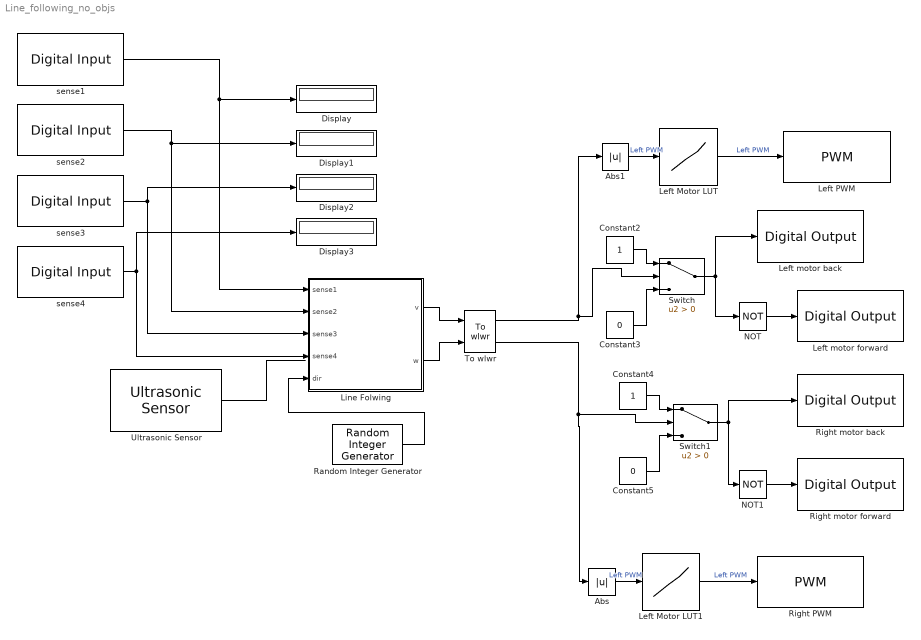
== stateflow chart Line_following_no_objs/Line Folwing ==
  state Random
    entry:
    dir;
  state notEnd
    entry:
    v=-0.12;
  state End
    entry:
    v=0;
    w=0;
    i=1;
  state TurnAround
    entry:
    v=0;
    w=3;
  state checkEnd
    entry:
    v=0.12;
  state TurnLeft
    entry:
    v=0.12;
    w=3;
  state TurnRight
    entry:
    v=0.12;
    w=-3;
  state Drive
    entry:
    v=0.13;
    w=0;
    i;
    n;
    data1;
  state Wait1
    entry:
    w=0;
    v=0;
  state CorrectRight
    entry:
    w=-5;
    v=0.1;
  state CorrectLeft
    entry:
    w=5;
  state Wait
    entry:
    w=0;
    v=0;
  state wait
    entry:
    v=0;
  state wait1
    entry:
    v=0;
  checkEnd -> TurnAround [order 3] : [after(0.5,sec) &&sense1 ==0 && sense2 == 0 && sense3 ==0 && sense4==0 && i==1]
  Random -> TurnLeft [order 2] : [dir==1]
  Random -> TurnRight [order 1] : [dir==0]
  notEnd -> Random : [after(0.5,sec)]
  checkEnd -> notEnd [order 1] : [after(0.5,sec) &&sense1 == 1 && sense2 == 1 && sense3 ==1 && sense4==1 ]
  End -> TurnAround : [after(3,sec)]
  checkEnd -> End [order 2] : [after(0.5,sec) &&sense1 ==0 && sense2 == 0 && sense3 ==0 && sense4==0 && i==0]
  TurnAround -> Drive : [after(2,sec) && sense2 == 0 && sense3 == 0]
  TurnRight -> Drive : [after(0.5,sec) && sense2 ==0 && sense3 ==0]
  Drive -> TurnLeft [order 1] : [after(0.5,sec) && sense2 == 0 && sense3 == 0 && sense1 == 0 ]
  (default) -> Drive
  Drive -> TurnRight [order 2] : [after(0.5,sec) && sense2 == 0 && sense3 == 0 && sense4 == 0 && sense1==1]
  TurnLeft -> Drive : [sense2==0 && sense3==0 && after(0.5,sec)]
  Wait1 -> Drive : [after(1,sec)]
  CorrectRight -> Wait1 : [sense2==0 && sense3 == 0 && after(0.2,sec)]
  wait1 -> CorrectRight : [after(1,sec)]
  CorrectLeft -> Wait : [sense2 ==0 && sense3 ==0&& after(0.2,sec)]
  Wait -> Drive : [after(1,sec)]
  Drive -> wait [order 4] : [sense2==0 && sense3 ==1 && sense1 == 1 &&sense4 ==1]
  Drive -> wait1 [order 3] : [sense2==1 && sense3 ==0 && sense1 == 1 &&sense4 ==1]
  wait -> CorrectLeft : [after(1,sec)]
  data: v output; w output; sense3 input; sense2 input; sense4 input; sense1 input; i local =0; dir input; n local =1; data1 local =100

/*
 * Line_following_no_objs.c
 *
 * Academic License - for use in teaching, academic research, and meeting
 * course requirements at degree granting institutions only.  Not for
 * government, commercial, or other organizational use.
 *
 * Code generation for model "Line_following_no_objs".
 *
 * Model version              : 5.22
 * Simulink Coder version : 9.9 (R2023a) 19-Nov-2022
 * C source code generated on : Thu Oct  5 17:04:01 2023
 *
 * Target selection: ert.tlc
 * Note: GRT includes extra infrastructure and instrumentation for prototyping
 * Embedded hardware selection: ARM Compatible->ARM Cortex
 * Code generation objectives: Unspecified
 * Validation result: Not run
 */

#include "Line_following_no_objs.h"
#include "rtwtypes.h"
#include <string.h>
#include "Line_following_no_objs_types.h"
#include <math.h>
#include "Line_following_no_objs_private.h"

/* Named constants for Chart: '<Root>/Line Folwing' */
#define Line_followi_IN_NO_ACTIVE_CHILD ((uint8_T)0U)
#define Line_following__IN_CorrectRight ((uint8_T)2U)
#define Line_following_n_IN_CorrectLeft ((uint8_T)1U)
#define Line_following_no_IN_TurnAround ((uint8_T)6U)
#define Line_following_no__IN_TurnRight ((uint8_T)8U)
#define Line_following_no_o_IN_TurnLeft ((uint8_T)7U)
#define Line_following_no_o_IN_checkEnd ((uint8_T)11U)
#define Line_following_no_obj_IN_Random ((uint8_T)5U)
#define Line_following_no_obj_IN_notEnd ((uint8_T)12U)
#define Line_following_no_objs_IN_Drive ((uint8_T)3U)
#define Line_following_no_objs_IN_End  ((uint8_T)4U)
#define Line_following_no_objs_IN_Wait ((uint8_T)9U)
#define Line_following_no_objs_IN_Wait1 ((uint8_T)10U)
#define Line_following_no_objs_IN_wait ((uint8_T)13U)
#define Line_following_no_objs_IN_wait1 ((uint8_T)14U)

/* Block signals (default storage) */
B_Line_following_no_objs_T Line_following_no_objs_B;

/* Block states (default storage) */
DW_Line_following_no_objs_T Line_following_no_objs_DW;

/* Real-time model */
static RT_MODEL_Line_following_no_ob_T Line_following_no_objs_M_;
RT_MODEL_Line_following_no_ob_T *const Line_following_no_objs_M =
  &Line_following_no_objs_M_;

/* Forward declaration for local functions */
static void Line_following_no_objs_Drive(void);
static real_T Line_following_no_objs_rand(void);
static void rate_monotonic_scheduler(void);
uint32_T plook_u32d_binckan(real_T u, const real_T bp[], uint32_T maxIndex)
{
  uint32_T bpIndex;

  /* Prelookup - Index only
     Index Search method: 'binary'
     Interpolation method: 'Use nearest'
     Extrapolation method: 'Clip'
     Use previous index: 'off'
     Use last breakpoint for index at or above upper limit: 'on'
     Remove protection against out-of-range input in generated code: 'off'
   */
  if (u <= bp[0U]) {
    bpIndex = 0U;
  } else if (u < bp[maxIndex]) {
    bpIndex = binsearch_u32d(u, bp, maxIndex >> 1U, maxIndex);
    if ((bpIndex < maxIndex) && (bp[bpIndex + 1U] - u <= u - bp[bpIndex])) {
      bpIndex++;
    }
  } else {
    bpIndex = maxIndex;
  }

  return bpIndex;
}

uint32_T binsearch_u32d(real_T u, const real_T bp[], uint32_T startIndex,
  uint32_T maxIndex)
{
  uint32_T bpIdx;
  uint32_T bpIndex;
  uint32_T iRght;

  /* Binary Search */
  bpIdx = startIndex;
  bpIndex = 0U;
  iRght = maxIndex;
  while (iRght - bpIndex > 1U) {
    if (u < bp[bpIdx]) {
      iRght = bpIdx;
    } else {
      bpIndex = bpIdx;
    }

    bpIdx = (iRght + bpIndex) >> 1U;
  }

  return bpIndex;
}

/*
 * Set which subrates need to run this base step (base rate always runs).
 * This function must be called prior to calling the model step function
 * in order to remember which rates need to run this base step.  The
 * buffering of events allows for overlapping preemption.
 */
void Line_following_no_objs_SetEventsForThisBaseStep(boolean_T *eventFlags)
{
  /* Task runs when its counter is zero, computed via rtmStepTask macro */
  eventFlags[1] = ((boolean_T)rtmStepTask(Line_following_no_objs_M, 1));
  eventFlags[2] = ((boolean_T)rtmStepTask(Line_following_no_objs_M, 2));
}

/*
 *         This function updates active task flag for each subrate
 *         and rate transition flags for tasks that exchange data.
 *         The function assumes rate-monotonic multitasking scheduler.
 *         The function must be called at model base rate so that
 *         the generated code self-manages all its subrates and rate
 *         transition flags.
 */
static void rate_monotonic_scheduler(void)
{
  /* To ensure a deterministic data transfer between two rates,
   * data is transferred at the priority of a fast task and the frequency
   * of the slow task.  The following flags indicate when the data transfer
   * happens.  That is, a rate interaction flag is set true when both rates
   * will run, and false otherwise.
   */

  /* tid 1 shares data with slower tid rate: 2 */
  if (Line_following_no_objs_M->Timing.TaskCounters.TID[1] == 0) {
    Line_following_no_objs_M->Timing.RateInteraction.TID1_2 =
      (Line_following_no_objs_M->Timing.TaskCounters.TID[2] == 0);
  }

  /* Compute which subrates run during the next base time step.  Subrates
   * are an integer multiple of the base rate counter.  Therefore, the subtask
   * counter is reset when it reaches its limit (zero means run).
   */
  (Line_following_no_objs_M->Timing.TaskCounters.TID[1])++;
  if ((Line_following_no_objs_M->Timing.TaskCounters.TID[1]) > 9) {/* Sample time: [0.1s, 0.0s] */
    Line_following_no_objs_M->Timing.TaskCounters.TID[1] = 0;
  }

  (Line_following_no_objs_M->Timing.TaskCounters.TID[2])++;
  if ((Line_following_no_objs_M->Timing.TaskCounters.TID[2]) > 299) {/* Sample time: [3.0s, 0.0s] */
    Line_following_no_objs_M->Timing.TaskCounters.TID[2] = 0;
  }
}

/* Function for Chart: '<Root>/Line Folwing' */
static void Line_following_no_objs_Drive(void)
{
  boolean_T tmp;
  boolean_T tmp_0;
  boolean_T tmp_1;
  Line_following_no_objs_B.v = 0.13;
  Line_following_no_objs_B.w = 0.0;
  tmp_0 = !Line_following_no_objs_B.sense3;
  tmp_1 = !Line_following_no_objs_B.sense2;
  tmp = ((Line_following_no_objs_DW.temporalCounter_i1 >= 5U) && tmp_1 && tmp_0);
  if (tmp && (!Line_following_no_objs_B.sense1)) {
    Line_following_no_objs_DW.is_c1_Line_following_no_objs =
      Line_following_no_o_IN_TurnLeft;
    Line_following_no_objs_DW.temporalCounter_i1 = 0U;
    Line_following_no_objs_B.v = 0.12;
    Line_following_no_objs_B.w = 3.0;
  } else if (tmp && (!Line_following_no_objs_B.sense4) &&
             Line_following_no_objs_B.sense1) {
    Line_following_no_objs_DW.is_c1_Line_following_no_objs =
      Line_following_no__IN_TurnRight;
    Line_following_no_objs_DW.temporalCounter_i1 = 0U;
    Line_following_no_objs_B.v = 0.12;
    Line_following_no_objs_B.w = -3.0;
  } else if (Line_following_no_objs_B.sense2 && tmp_0 &&
             Line_following_no_objs_B.sense1 && Line_following_no_objs_B.sense4)
  {
    Line_following_no_objs_DW.is_c1_Line_following_no_objs =
      Line_following_no_objs_IN_wait1;
    Line_following_no_objs_DW.temporalCounter_i1 = 0U;
    Line_following_no_objs_B.v = 0.0;
  } else if (tmp_1 && Line_following_no_objs_B.sense3 &&
             Line_following_no_objs_B.sense1 && Line_following_no_objs_B.sense4)
  {
    Line_following_no_objs_DW.is_c1_Line_following_no_objs =
      Line_following_no_objs_IN_wait;
    Line_following_no_objs_DW.temporalCounter_i1 = 0U;
    Line_following_no_objs_B.v = 0.0;
  }
}

real_T rt_roundd_snf(real_T u)
{
  real_T y;
  if (fabs(u) < 4.503599627370496E+15) {
    if (u >= 0.5) {
      y = floor(u + 0.5);
    } else if (u > -0.5) {
      y = u * 0.0;
    } else {
      y = ceil(u - 0.5);
    }
  } else {
    y = u;
  }

  return y;
}

static real_T Line_following_no_objs_rand(void)
{
  real_T r;
  int32_T b_kk;
  int32_T exitg1;
  int32_T k;
  uint32_T b_u[2];
  uint32_T mti;
  uint32_T y;
  boolean_T b_isvalid;
  boolean_T exitg2;
  if (Line_following_no_objs_DW.method == 4U) {
    k = (int32_T)(Line_following_no_objs_DW.state / 127773U);
    mti = (Line_following_no_objs_DW.state - (uint32_T)k * 127773U) * 16807U;
    y = 2836U * (uint32_T)k;
    if (mti < y) {
      Line_following_no_objs_DW.state = ~(y - mti) & 2147483647U;
    } else {
      Line_following_no_objs_DW.state = mti - y;
    }

    r = (real_T)Line_following_no_objs_DW.state * 4.6566128752457969E-10;
  } else if (Line_following_no_objs_DW.method == 5U) {
    mti = 69069U * Line_following_no_objs_DW.state_f[0] + 1234567U;
    y = Line_following_no_objs_DW.state_f[1] << 13 ^
      Line_following_no_objs_DW.state_f[1];
    y ^= y >> 17;
    y ^= y << 5;
    Line_following_no_objs_DW.state_f[0] = mti;
    Line_following_no_objs_DW.state_f[1] = y;
    r = (real_T)(mti + y) * 2.328306436538696E-10;
  } else {
    /* ========================= COPYRIGHT NOTICE ============================ */
    /*  This is a uniform (0,1) pseudorandom number generator based on:        */
    /*                                                                         */
    /*  A C-program for MT19937, with initialization improved 2002/1/26.       */
    /*  Coded by Takuji Nishimura and Makoto Matsumoto.                        */
    /*                                                                         */
    /*  Copyright (C) 1997 - 2002, Makoto Matsumoto and Takuji Nishimura,      */
    /*  All rights reserved.                                                   */
    /*                                                                         */
    /*  Redistribution and use in source and binary forms, with or without     */
    /*  modification, are permitted provided that the following conditions     */
    /*  are met:                                                               */
    /*                                                                         */
    /*    1. Redistributions of source code must retain the above copyright    */
    /*       notice, this list of conditions and the following disclaimer.     */
    /*                                                                         */
    /*    2. Redistributions in binary form must reproduce the above copyright */
    /*       notice, this list of conditions and the following disclaimer      */
    /*       in the documentation and/or other materials provided with the     */
    /*       distribution.                                                     */
    /*                                                                         */
    /*    3. The names of its contributors may not be used to endorse or       */
    /*       promote products derived from this software without specific      */
    /*       prior written permission.                                         */
    /*                                                                         */
    /*  THIS SOFTWARE IS PROVIDED BY THE COPYRIGHT HOLDERS AND CONTRIBUTORS    */
    /*  "AS IS" AND ANY EXPRESS OR IMPLIED WARRANTIES, INCLUDING, BUT NOT      */
    /*  LIMITED TO, THE IMPLIED WARRANTIES OF MERCHANTABILITY AND FITNESS FOR  */
    /*  A PARTICULAR PURPOSE ARE DISCLAIMED.  IN NO EVENT SHALL THE COPYRIGHT  */
    /*  OWNER OR CONTRIBUTORS BE LIABLE FOR ANY DIRECT, INDIRECT, INCIDENTAL,  */
    /*  SPECIAL, EXEMPLARY, OR CONSEQUENTIAL DAMAGES (INCLUDING, BUT NOT       */
    /*  LIMITED TO, PROCUREMENT OF SUBSTITUTE GOODS OR SERVICES; LOSS OF USE,  */
    /*  DATA, OR PROFITS; OR BUSINESS INTERRUPTION) HOWEVER CAUSED AND ON ANY  */
    /*  THEORY OF LIABILITY, WHETHER IN CONTRACT, STRICT LIABILITY, OR TORT    */
    /*  (INCLUDING  NEGLIGENCE OR OTHERWISE) ARISING IN ANY WAY OUT OF THE USE */
    /*  OF THIS  SOFTWARE, EVEN IF ADVISED OF THE POSSIBILITY OF SUCH DAMAGE.  */
    /*                                                                         */
    /* =============================   END   ================================= */
    do {
      exitg1 = 0;
      for (k = 0; k < 2; k++) {
        mti = Line_following_no_objs_DW.state_p[624] + 1U;
        if (Line_following_no_objs_DW.state_p[624] + 1U >= 625U) {
          for (b_kk = 0; b_kk < 227; b_kk++) {
            y = (Line_following_no_objs_DW.state_p[b_kk + 1] & 2147483647U) |
              (Line_following_no_objs_DW.state_p[b_kk] & 2147483648U);
            if ((y & 1U) == 0U) {
              mti = y >> 1U;
            } else {
              mti = y >> 1U ^ 2567483615U;
            }

            Line_following_no_objs_DW.state_p[b_kk] =
              Line_following_no_objs_DW.state_p[b_kk + 397] ^ mti;
          }

          for (b_kk = 0; b_kk < 396; b_kk++) {
            y = (Line_following_no_objs_DW.state_p[b_kk + 227] & 2147483648U) |
              (Line_following_no_objs_DW.state_p[b_kk + 228] & 2147483647U);
            if ((y & 1U) == 0U) {
              mti = y >> 1U;
            } else {
              mti = y >> 1U ^ 2567483615U;
            }

            Line_following_no_objs_DW.state_p[b_kk + 227] =
              Line_following_no_objs_DW.state_p[b_kk] ^ mti;
          }

          y = (Line_following_no_objs_DW.state_p[623] & 2147483648U) |
            (Line_following_no_objs_DW.state_p[0] & 2147483647U);
          if ((y & 1U) == 0U) {
            mti = y >> 1U;
          } else {
            mti = y >> 1U ^ 2567483615U;
          }

          Line_following_no_objs_DW.state_p[623] =
            Line_following_no_objs_DW.state_p[396] ^ mti;
          mti = 1U;
        }

        y = Line_following_no_objs_DW.state_p[(int32_T)mti - 1];
        Line_following_no_objs_DW.state_p[624] = mti;
        y ^= y >> 11U;
        y ^= y << 7U & 2636928640U;
        y ^= y << 15U & 4022730752U;
        b_u[k] = y >> 18U ^ y;
      }

      r = ((real_T)(b_u[0] >> 5U) * 6.7108864E+7 + (real_T)(b_u[1] >> 6U)) *
        1.1102230246251565E-16;
      if (r == 0.0) {
        if ((Line_following_no_objs_DW.state_p[624] >= 1U) &&
            (Line_following_no_objs_DW.state_p[624] < 625U)) {
          b_isvalid = true;
        } else {
          b_isvalid = false;
        }

        if (b_isvalid) {
          b_isvalid = false;
          k = 0;
          exitg2 = false;
          while ((!exitg2) && (k + 1 < 625)) {
            if (Line_following_no_objs_DW.state_p[k] == 0U) {
              k++;
            } else {
              b_isvalid = true;
              exitg2 = true;
            }
          }
        }

        if (!b_isvalid) {
          mti = 5489U;
          Line_following_no_objs_DW.state_p[0] = 5489U;
          for (k = 0; k < 623; k++) {
            mti = ((mti >> 30U ^ mti) * 1812433253U + (uint32_T)k) + 1U;
            Line_following_no_objs_DW.state_p[k + 1] = mti;
          }

          Line_following_no_objs_DW.state_p[624] = 624U;
        }
      } else {
        exitg1 = 1;
      }
    } while (exitg1 == 0);
  }

  return r;
}

/* Model step function for TID0 */
void Line_following_no_objs_step0(void) /* Sample time: [0.01s, 0.0s] */
{
  uint32_T duration;

  {                                    /* Sample time: [0.01s, 0.0s] */
    rate_monotonic_scheduler();
  }

  /* MATLABSystem: '<Root>/Ultrasonic Sensor' */
  if (Line_following_no_objs_DW.obj_bs.TunablePropsChanged) {
    Line_following_no_objs_DW.obj_bs.TunablePropsChanged = false;
  }

  MW_UltrasonicRead(&duration, 1, 13, 12, 10);

  /* End of MATLABSystem: '<Root>/Ultrasonic Sensor' */
}

/* Model step function for TID1 */
void Line_following_no_objs_step1(void) /* Sample time: [0.1s, 0.0s] */
{
  codertarget_arduinobase_inter_T *obj;
  real_T rtb_vtow_idx_0;
  real_T rtb_vtow_idx_1;
  real_T u0;
  uint8_T tmp;
  boolean_T tmp_0;

  /* RateTransition generated from: '<Root>/Line Folwing' */
  if (Line_following_no_objs_M->Timing.RateInteraction.TID1_2) {
    /* RateTransition generated from: '<Root>/Line Folwing' */
    Line_following_no_objs_B.TmpRTBAtLineFolwingInport5 =
      Line_following_no_objs_DW.TmpRTBAtLineFolwingInport5_Buff;
  }

  /* End of RateTransition generated from: '<Root>/Line Folwing' */

  /* MATLABSystem: '<Root>/sense3' */
  if (Line_following_no_objs_DW.obj_h.SampleTime !=
      Line_following_no_objs_P.sense3_SampleTime) {
    Line_following_no_objs_DW.obj_h.SampleTime =
      Line_following_no_objs_P.sense3_SampleTime;
  }

  /* MATLABSystem: '<Root>/sense3' */
  Line_following_no_objs_B.sense3 = readDigitalPin(9);

  /* MATLABSystem: '<Root>/sense2' */
  if (Line_following_no_objs_DW.obj_b.SampleTime !=
      Line_following_no_objs_P.sense2_SampleTime) {
    Line_following_no_objs_DW.obj_b.SampleTime =
      Line_following_no_objs_P.sense2_SampleTime;
  }

  /* MATLABSystem: '<Root>/sense2' */
  Line_following_no_objs_B.sense2 = readDigitalPin(10);

  /* MATLABSystem: '<Root>/sense4' */
  if (Line_following_no_objs_DW.obj.SampleTime !=
      Line_following_no_objs_P.sense4_SampleTime) {
    Line_following_no_objs_DW.obj.SampleTime =
      Line_following_no_objs_P.sense4_SampleTime;
  }

  /* MATLABSystem: '<Root>/sense4' */
  Line_following_no_objs_B.sense4 = readDigitalPin(8);

  /* MATLABSystem: '<Root>/sense1' */
  if (Line_following_no_objs_DW.obj_m.SampleTime !=
      Line_following_no_objs_P.sense1_SampleTime) {
    Line_following_no_objs_DW.obj_m.SampleTime =
      Line_following_no_objs_P.sense1_SampleTime;
  }

  /* MATLABSystem: '<Root>/sense1' */
  Line_following_no_objs_B.sense1 = readDigitalPin(11);

  /* Chart: '<Root>/Line Folwing' */
  if (Line_following_no_objs_DW.temporalCounter_i1 < 31U) {
    Line_following_no_objs_DW.temporalCounter_i1++;
  }

  if (Line_following_no_objs_DW.is_active_c1_Line_following_no_ == 0U) {
    Line_following_no_objs_DW.is_active_c1_Line_following_no_ = 1U;
    Line_following_no_objs_DW.is_c1_Line_following_no_objs =
      Line_following_no_objs_IN_Drive;
    Line_following_no_objs_DW.temporalCounter_i1 = 0U;
    Line_following_no_objs_B.v = 0.13;
    Line_following_no_objs_B.w = 0.0;
  } else {
    switch (Line_following_no_objs_DW.is_c1_Line_following_no_objs) {
     case Line_following_n_IN_CorrectLeft:
      Line_following_no_objs_B.w = 5.0;
      if ((!Line_following_no_objs_B.sense2) &&
          (!Line_following_no_objs_B.sense3) &&
          (Line_following_no_objs_DW.temporalCounter_i1 >= 2U)) {
        Line_following_no_objs_DW.is_c1_Line_following_no_objs =
          Line_following_no_objs_IN_Wait;
        Line_following_no_objs_DW.temporalCounter_i1 = 0U;
        Line_following_no_objs_B.w = 0.0;
        Line_following_no_objs_B.v = 0.0;
      }
      break;

     case Line_following__IN_CorrectRight:
      Line_following_no_objs_B.w = -5.0;
      Line_following_no_objs_B.v = 0.1;
      if ((!Line_following_no_objs_B.sense2) &&
          (!Line_following_no_objs_B.sense3) &&
          (Line_following_no_objs_DW.temporalCounter_i1 >= 2U)) {
        Line_following_no_objs_DW.is_c1_Line_following_no_objs =
          Line_following_no_objs_IN_Wait1;
        Line_following_no_objs_DW.temporalCounter_i1 = 0U;
        Line_following_no_objs_B.w = 0.0;
        Line_following_no_objs_B.v = 0.0;
      }
      break;

     case Line_following_no_objs_IN_Drive:
      Line_following_no_objs_Drive();
      break;

     case Line_following_no_objs_IN_End:
      Line_following_no_objs_B.v = 0.0;
      Line_following_no_objs_B.w = 0.0;
      if (Line_following_no_objs_DW.temporalCounter_i1 >= 30U) {
        Line_following_no_objs_DW.is_c1_Line_following_no_objs =
          Line_following_no_IN_TurnAround;
        Line_following_no_objs_DW.temporalCounter_i1 = 0U;
        Line_following_no_objs_B.w = 3.0;
      }
      break;

     case Line_following_no_obj_IN_Random:
      if (!Line_following_no_objs_B.TmpRTBAtLineFolwingInport5) {
        Line_following_no_objs_DW.is_c1_Line_following_no_objs =
          Line_following_no__IN_TurnRight;
        Line_following_no_objs_DW.temporalCounter_i1 = 0U;
        Line_following_no_objs_B.v = 0.12;
        Line_following_no_objs_B.w = -3.0;
      } else {
        Line_following_no_objs_DW.is_c1_Line_following_no_objs =
          Line_following_no_o_IN_TurnLeft;
        Line_following_no_objs_DW.temporalCounter_i1 = 0U;
        Line_following_no_objs_B.v = 0.12;
        Line_following_no_objs_B.w = 3.0;
      }
      break;

     case Line_following_no_IN_TurnAround:
      Line_following_no_objs_B.v = 0.0;
      Line_following_no_objs_B.w = 3.0;
      if ((Line_following_no_objs_DW.temporalCounter_i1 >= 20U) &&
          (!Line_following_no_objs_B.sense2) &&
          (!Line_following_no_objs_B.sense3)) {
        Line_following_no_objs_DW.is_c1_Line_following_no_objs =
          Line_following_no_objs_IN_Drive;
        Line_following_no_objs_DW.temporalCounter_i1 = 0U;
        Line_following_no_objs_B.v = 0.13;
        Line_following_no_objs_B.w = 0.0;
      }
      break;

     case Line_following_no_o_IN_TurnLeft:
      Line_following_no_objs_B.v = 0.12;
      Line_following_no_objs_B.w = 3.0;
      if ((!Line_following_no_objs_B.sense2) &&
          (!Line_following_no_objs_B.sense3) &&
          (Line_following_no_objs_DW.temporalCounter_i1 >= 5U)) {
        Line_following_no_objs_DW.is_c1_Line_following_no_objs =
          Line_following_no_objs_IN_Drive;
        Line_following_no_objs_DW.temporalCounter_i1 = 0U;
        Line_following_no_objs_B.v = 0.13;
        Line_following_no_objs_B.w = 0.0;
      }
      break;

     case Line_following_no__IN_TurnRight:
      Line_following_no_objs_B.v = 0.12;
      Line_following_no_objs_B.w = -3.0;
      if ((Line_following_no_objs_DW.temporalCounter_i1 >= 5U) &&
          (!Line_following_no_objs_B.sense2) &&
          (!Line_following_no_objs_B.sense3)) {
        Line_following_no_objs_DW.is_c1_Line_following_no_objs =
          Line_following_no_objs_IN_Drive;
        Line_following_no_objs_DW.temporalCounter_i1 = 0U;
        Line_following_no_objs_B.v = 0.13;
        Line_following_no_objs_B.w = 0.0;
      }
      break;

     case Line_following_no_objs_IN_Wait:
      Line_following_no_objs_B.w = 0.0;
      Line_following_no_objs_B.v = 0.0;
      if (Line_following_no_objs_DW.temporalCounter_i1 >= 10U) {
        Line_following_no_objs_DW.is_c1_Line_following_no_objs =
          Line_following_no_objs_IN_Drive;
        Line_following_no_objs_DW.temporalCounter_i1 = 0U;
        Line_following_no_objs_B.v = 0.13;
      }
      break;

     case Line_following_no_objs_IN_Wait1:
      Line_following_no_objs_B.w = 0.0;
      Line_following_no_objs_B.v = 0.0;
      if (Line_following_no_objs_DW.temporalCounter_i1 >= 10U) {
        Line_following_no_objs_DW.is_c1_Line_following_no_objs =
          Line_following_no_objs_IN_Drive;
        Line_following_no_objs_DW.temporalCounter_i1 = 0U;
        Line_following_no_objs_B.v = 0.13;
      }
      break;

     case Line_following_no_o_IN_checkEnd:
      Line_following_no_objs_B.v = 0.12;
      if ((Line_following_no_objs_DW.temporalCounter_i1 >= 5U) &&
          Line_following_no_objs_B.sense1 && Line_following_no_objs_B.sense2 &&
          Line_following_no_objs_B.sense3 && Line_following_no_objs_B.sense4) {
        Line_following_no_objs_DW.is_c1_Line_following_no_objs =
          Line_following_no_obj_IN_notEnd;
        Line_following_no_objs_DW.temporalCounter_i1 = 0U;
        Line_following_no_objs_B.v = -0.12;
      } else {
        tmp_0 = ((Line_following_no_objs_DW.temporalCounter_i1 >= 5U) &&
                 (!Line_following_no_objs_B.sense1) &&
                 (!Line_following_no_objs_B.sense2) &&
                 (!Line_following_no_objs_B.sense3) &&
                 (!Line_following_no_objs_B.sense4));
        if (tmp_0 && (Line_following_no_objs_DW.i == 0.0)) {
          Line_following_no_objs_DW.is_c1_Line_following_no_objs =
            Line_following_no_objs_IN_End;
          Line_following_no_objs_DW.temporalCounter_i1 = 0U;
          Line_following_no_objs_B.v = 0.0;
          Line_following_no_objs_B.w = 0.0;
          Line_following_no_objs_DW.i = 1.0;
        } else if (tmp_0 && (Line_following_no_objs_DW.i == 1.0)) {
          Line_following_no_objs_DW.is_c1_Line_following_no_objs =
            Line_following_no_IN_TurnAround;
          Line_following_no_objs_DW.temporalCounter_i1 = 0U;
          Line_following_no_objs_B.v = 0.0;
          Line_following_no_objs_B.w = 3.0;
        }
      }
      break;

     case Line_following_no_obj_IN_notEnd:
      Line_following_no_objs_B.v = -0.12;
      if (Line_following_no_objs_DW.temporalCounter_i1 >= 5U) {
        Line_following_no_objs_DW.is_c1_Line_following_no_objs =
          Line_following_no_obj_IN_Random;
      }
      break;

     case Line_following_no_objs_IN_wait:
      Line_following_no_objs_B.v = 0.0;
      if (Line_following_no_objs_DW.temporalCounter_i1 >= 10U) {
        Line_following_no_objs_DW.is_c1_Line_following_no_objs =
          Line_following_n_IN_CorrectLeft;
        Line_following_no_objs_DW.temporalCounter_i1 = 0U;
        Line_following_no_objs_B.w = 5.0;
      }
      break;

     default:
      /* case IN_wait1: */
      Line_following_no_objs_B.v = 0.0;
      if (Line_following_no_objs_DW.temporalCounter_i1 >= 10U) {
        Line_following_no_objs_DW.is_c1_Line_following_no_objs =
          Line_following__IN_CorrectRight;
        Line_following_no_objs_DW.temporalCounter_i1 = 0U;
        Line_following_no_objs_B.w = -5.0;
        Line_following_no_objs_B.v = 0.1;
      }
      break;
    }
  }

  /* End of Chart: '<Root>/Line Folwing' */

  /* Gain: '<S2>/vtow' incorporates:
   *  Gain: '<S2>/change parameters'
   *  SignalConversion generated from: '<S2>/change parameters'
   */
  u0 = 1.0 / Line_following_no_objs_P.Towlwr_wheelR;
  rtb_vtow_idx_0 = (Line_following_no_objs_P.changeparameters_Gain[0] *
                    Line_following_no_objs_B.v +
                    Line_following_no_objs_P.changeparameters_Gain[2] *
                    Line_following_no_objs_B.w) * u0;
  rtb_vtow_idx_1 = (Line_following_no_objs_P.changeparameters_Gain[1] *
                    Line_following_no_objs_B.v +
                    Line_following_no_objs_P.changeparameters_Gain[3] *
                    Line_following_no_objs_B.w) * u0;

  /* MATLABSystem: '<Root>/Left PWM' */
  obj = &Line_following_no_objs_DW.obj_f;
  obj->PWMDriverObj.MW_PWM_HANDLE = MW_PWM_GetHandle(16U);

  /* Lookup_n-D: '<Root>/Left Motor LUT' incorporates:
   *  Abs: '<Root>/Abs1'
   */
  u0 = Line_following_no_objs_P.InputPWM[plook_u32d_binckan(fabs(rtb_vtow_idx_0),
    Line_following_no_objs_P.WheelSpeed, 172U)];

  /* MATLABSystem: '<Root>/Left PWM' */
  if (!(u0 <= 255.0)) {
    u0 = 255.0;
  }

  if (!(u0 >= 0.0)) {
    u0 = 0.0;
  }

  MW_PWM_SetDutyCycle(Line_following_no_objs_DW.obj_f.PWMDriverObj.MW_PWM_HANDLE,
                      u0);

  /* Switch: '<Root>/Switch' incorporates:
   *  Constant: '<Root>/Constant2'
   *  Constant: '<Root>/Constant3'
   */
  if (rtb_vtow_idx_0 > Line_following_no_objs_P.Switch_Threshold) {
    rtb_vtow_idx_0 = Line_following_no_objs_P.Constant2_Value;
  } else {
    rtb_vtow_idx_0 = Line_following_no_objs_P.Constant3_Value;
  }

  /* End of Switch: '<Root>/Switch' */

  /* MATLABSystem: '<Root>/Left motor back' */
  u0 = rt_roundd_snf(rtb_vtow_idx_0);
  if (u0 < 256.0) {
    if (u0 >= 0.0) {
      tmp = (uint8_T)u0;
    } else {
      tmp = 0U;
    }
  } else {
    tmp = MAX_uint8_T;
  }

  writeDigitalPin(5, tmp);

  /* End of MATLABSystem: '<Root>/Left motor back' */

  /* MATLABSystem: '<Root>/Left motor forward' incorporates:
   *  Logic: '<Root>/NOT'
   */
  writeDigitalPin(4, (uint8_T)!(rtb_vtow_idx_0 != 0.0));

  /* MATLABSystem: '<Root>/Right PWM' */
  obj = &Line_following_no_objs_DW.obj_p;
  obj->PWMDriverObj.MW_PWM_HANDLE = MW_PWM_GetHandle(17U);

  /* Lookup_n-D: '<Root>/Left Motor LUT1' incorporates:
   *  Abs: '<Root>/Abs'
   */
  u0 = Line_following_no_objs_P.InputPWM[plook_u32d_binckan(fabs(rtb_vtow_idx_1),
    Line_following_no_objs_P.WheelSpeed, 172U)];

  /* MATLABSystem: '<Root>/Right PWM' */
  if (!(u0 <= 255.0)) {
    u0 = 255.0;
  }

  if (!(u0 >= 0.0)) {
    u0 = 0.0;
  }

  MW_PWM_SetDutyCycle(Line_following_no_objs_DW.obj_p.PWMDriverObj.MW_PWM_HANDLE,
                      u0);

  /* Switch: '<Root>/Switch1' incorporates:
   *  Constant: '<Root>/Constant4'
   *  Constant: '<Root>/Constant5'
   */
  if (rtb_vtow_idx_1 > Line_following_no_objs_P.Switch1_Threshold) {
    rtb_vtow_idx_1 = Line_following_no_objs_P.Constant4_Value;
  } else {
    rtb_vtow_idx_1 = Line_following_no_objs_P.Constant5_Value;
  }

  /* End of Switch: '<Root>/Switch1' */

  /* MATLABSystem: '<Root>/Right motor back' */
  u0 = rt_roundd_snf(rtb_vtow_idx_1);
  if (u0 < 256.0) {
    if (u0 >= 0.0) {
      tmp = (uint8_T)u0;
    } else {
      tmp = 0U;
    }
  } else {
    tmp = MAX_uint8_T;
  }

  writeDigitalPin(7, tmp);

  /* End of MATLABSystem: '<Root>/Right motor back' */

  /* MATLABSystem: '<Root>/Right motor forward' incorporates:
   *  Logic: '<Root>/NOT1'
   */
  writeDigitalPin(6, (uint8_T)!(rtb_vtow_idx_1 != 0.0));
}

/* Model step function for TID2 */
void Line_following_no_objs_step2(void) /* Sample time: [3.0s, 0.0s] */
{
  real_T b;
  boolean_T rtb_RandomIntegerGenerator;

  /* MATLABSystem: '<Root>/Random Integer Generator' */
  b = Line_following_no_objs_rand();
  rtb_RandomIntegerGenerator = (floor(b * 2.0) != 0.0);

  /* RateTransition generated from: '<Root>/Line Folwing' */
  Line_following_no_objs_DW.TmpRTBAtLineFolwingInport5_Buff =
    rtb_RandomIntegerGenerator;
}
